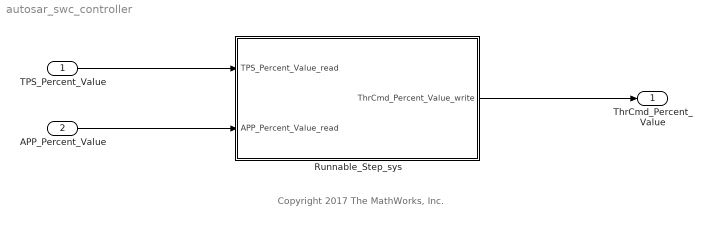
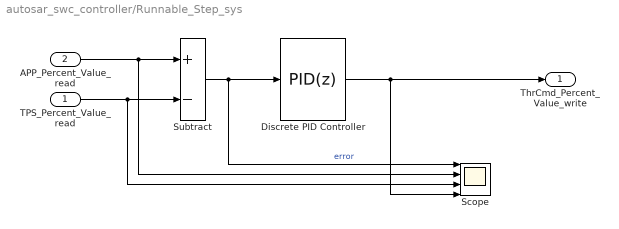
/*
 * File: autosar_swc_controller.c
 *
 * Code generated for Simulink model 'autosar_swc_controller'.
 *
 * Model version                  : 4.1
 * Simulink Coder version         : 9.5 (R2021a) 14-Nov-2020
 * C/C++ source code generated on : Thu Aug  7 15:21:09 2025
 *
 * Target selection: autosar.tlc
 * Embedded hardware selection: Intel->x86-64 (Windows64)
 * Code generation objectives: Unspecified
 * Validation result: Not run
 */

#include "autosar_swc_controller.h"
#include "autosar_swc_controller_private.h"

/* Block states (default storage) */
DW_autosar_swc_controller_T autosar_swc_controller_DW;

/* Model step function */
void Runnable_Step(void)
{
  float32 rtb_IntegralGain;
  float32 rtb_IntegralGain_0;
  float32 rtb_SignPreIntegrator;
  float32 rtb_SignPreIntegrator_0;
  float32 rtb_Sum;

  /* Outputs for Atomic SubSystem: '<Root>/Runnable_Step_sys' */
  /* Gain: '<S35>/Integral Gain' incorporates:
   *  Inport: '<Root>/APP_Percent_Value'
   *  Inport: '<Root>/TPS_Percent_Value'
   *  Sum: '<S1>/Subtract'
   */
  rtb_IntegralGain = Rte_IRead_Runnable_Step_APP_Percent_Value() -
    Rte_IRead_Runnable_Step_TPS_Percent_Value();

  /* Sum: '<S47>/Sum' incorporates:
   *  Delay: '<S31>/UD'
   *  DiscreteIntegrator: '<S38>/Integrator'
   *  Sum: '<S31>/Diff'
   */
  rtb_Sum = (rtb_IntegralGain + autosar_swc_controller_DW.Integrator_DSTATE) +
    (0.0F - autosar_swc_controller_DW.UD_DSTATE);

  /* DeadZone: '<S29>/DeadZone' */
  if (rtb_Sum > 100.0F) {
    /* Signum: '<S27>/SignPreIntegrator' */
    rtb_SignPreIntegrator = rtb_Sum - 100.0F;
  } else if (rtb_Sum >= -100.0F) {
    /* Signum: '<S27>/SignPreIntegrator' */
    rtb_SignPreIntegrator = 0.0F;
  } else {
    /* Signum: '<S27>/SignPreIntegrator' */
    rtb_SignPreIntegrator = rtb_Sum - -100.0F;
  }

  /* End of DeadZone: '<S29>/DeadZone' */

  /* Gain: '<S35>/Integral Gain' */
  rtb_IntegralGain *= 2.0F;

  /* Signum: '<S27>/SignPreSat' */
  if (rtb_SignPreIntegrator < 0.0F) {
    rtb_SignPreIntegrator_0 = -1.0F;
  } else if (rtb_SignPreIntegrator > 0.0F) {
    rtb_SignPreIntegrator_0 = 1.0F;
  } else {
    rtb_SignPreIntegrator_0 = rtb_SignPreIntegrator;
  }

  /* End of Signum: '<S27>/SignPreSat' */

  /* DataTypeConversion: '<S27>/DataTypeConv1' */
  rtb_SignPreIntegrator_0 = fmodf(rtb_SignPreIntegrator_0, 256.0F);

  /* Signum: '<S27>/SignPreIntegrator' */
  if (rtb_IntegralGain < 0.0F) {
    rtb_IntegralGain_0 = -1.0F;
  } else if (rtb_IntegralGain > 0.0F) {
    rtb_IntegralGain_0 = 1.0F;
  } else {
    rtb_IntegralGain_0 = rtb_IntegralGain;
  }

  /* End of Signum: '<S27>/SignPreIntegrator' */

  /* DataTypeConversion: '<S27>/DataTypeConv2' */
  rtb_IntegralGain_0 = fmodf(rtb_IntegralGain_0, 256.0F);

  /* Switch: '<S27>/Switch' incorporates:
   *  Constant: '<S27>/Constant1'
   *  DataTypeConversion: '<S27>/DataTypeConv1'
   *  DataTypeConversion: '<S27>/DataTypeConv2'
   *  Gain: '<S27>/ZeroGain'
   *  Logic: '<S27>/AND3'
   *  RelationalOperator: '<S27>/Equal1'
   *  RelationalOperator: '<S27>/NotEqual'
   */
  if ((0.0F != rtb_SignPreIntegrator) && ((rtb_SignPreIntegrator_0 < 0.0F ?
        (sint32)(sint8)-(sint8)(uint8)-rtb_SignPreIntegrator_0 : (sint32)(sint8)
        (uint8)rtb_SignPreIntegrator_0) == (rtb_IntegralGain_0 < 0.0F ? (sint32)
        (sint8)-(sint8)(uint8)-rtb_IntegralGain_0 : (sint32)(sint8)(uint8)
        rtb_IntegralGain_0))) {
    rtb_IntegralGain = 0.0F;
  }

  /* End of Switch: '<S27>/Switch' */

  /* Update for DiscreteIntegrator: '<S38>/Integrator' */
  autosar_swc_controller_DW.Integrator_DSTATE += 0.005F * rtb_IntegralGain;

  /* Update for Delay: '<S31>/UD' */
  autosar_swc_controller_DW.UD_DSTATE = 0.0F;

  /* Saturate: '<S45>/Saturation' */
  if (rtb_Sum > 100.0F) {
    rtb_Sum = 100.0F;
  } else if (rtb_Sum < -100.0F) {
    rtb_Sum = -100.0F;
  }

  /* End of Saturate: '<S45>/Saturation' */
  /* End of Outputs for SubSystem: '<Root>/Runnable_Step_sys' */

  /* Outport: '<Root>/ThrCmd_Percent_Value' */
  Rte_IWrite_Runnable_Step_ThrCmd_Percent_Value(rtb_Sum);
}
